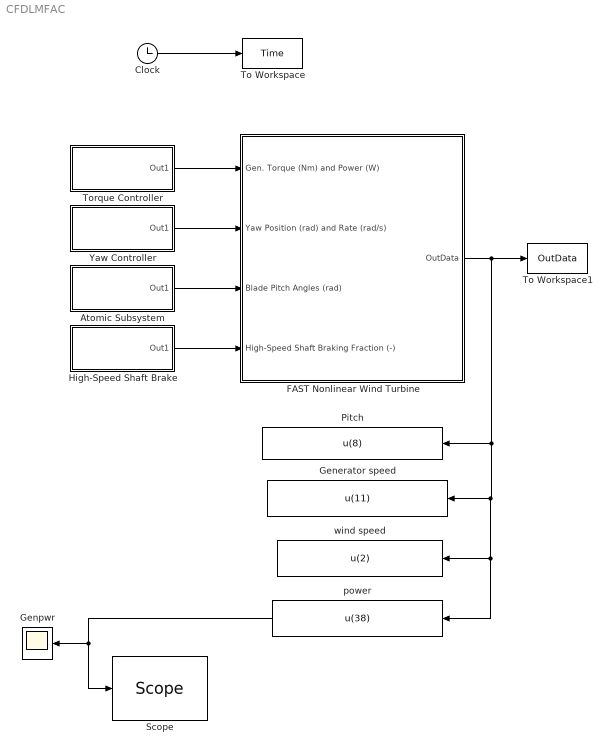
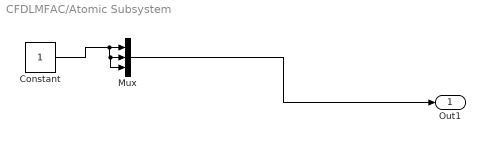
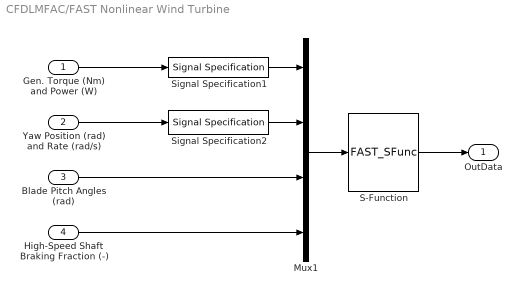
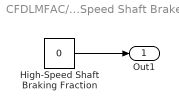
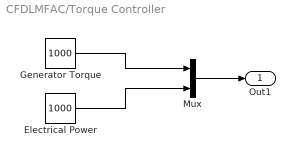
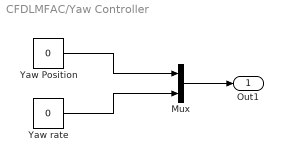
/*
 * CFDLMFAC.c
 *
 * Code generation for model "CFDLMFAC".
 *
 * Model version              : 1.105
 * Simulink Coder version : 9.0 (R2018b) 24-May-2018
 * C source code generated on : Thu Feb 25 07:41:00 2021
 *
 * Target selection: slrt.tlc
 * Note: GRT includes extra infrastructure and instrumentation for prototyping
 * Embedded hardware selection: Generic->32-bit x86 compatible
 * Code generation objective: Execution efficiency
 * Validation result: Not run
 */

#include "rt_logging_mmi.h"
#include "CFDLMFAC_capi.h"
#include "CFDLMFAC.h"
#include "CFDLMFAC_private.h"

/* Block signals (default storage) */
B_CFDLMFAC_T CFDLMFAC_B;

/* Block states (default storage) */
DW_CFDLMFAC_T CFDLMFAC_DW;

/* Real-time model */
RT_MODEL_CFDLMFAC_T CFDLMFAC_M_;
RT_MODEL_CFDLMFAC_T *const CFDLMFAC_M = &CFDLMFAC_M_;

/* Model output function */
static void CFDLMFAC_output(void)
{
  /* S-Function (FAST_SFunc): '<S2>/S-Function' incorporates:
   *  Constant: '<S1>/Constant'
   *  Constant: '<S3>/High-Speed Shaft Braking Fraction'
   *  Constant: '<S5>/Electrical Power'
   *  Constant: '<S5>/Generator Torque'
   *  Constant: '<S6>/Yaw Position'
   *  Constant: '<S6>/Yaw rate'
   */

  /* Level2 S-Function Block: '<S2>/S-Function' (FAST_SFunc) */
  {
    SimStruct *rts = CFDLMFAC_M->childSfunctions[0];
    sfcnOutputs(rts,1);
  }

  /* Fcn: '<Root>/power' */
  CFDLMFAC_B.power = CFDLMFAC_B.SFunction[37];

  /* Fcn: '<Root>/Pitch' */
  CFDLMFAC_B.Pitch = CFDLMFAC_B.SFunction[7];

  /* Fcn: '<Root>/wind speed' */
  CFDLMFAC_B.windspeed = CFDLMFAC_B.SFunction[1];

  /* Fcn: '<Root>/Generator speed' */
  CFDLMFAC_B.Generatorspeed = CFDLMFAC_B.SFunction[10];

  /* S-Function (scblock): '<S4>/S-Function' */
  /* ok to acquire for <S4>/S-Function */
  CFDLMFAC_DW.SFunction_IWORK.AcquireOK = 1;

  /* Clock: '<Root>/Clock' */
  CFDLMFAC_B.Clock = CFDLMFAC_M->Timing.t[0];
}

/* Model update function */
static void CFDLMFAC_update(void)
{
  /* Update for S-Function (FAST_SFunc): '<S2>/S-Function' incorporates:
   *  Constant: '<S1>/Constant'
   *  Constant: '<S3>/High-Speed Shaft Braking Fraction'
   *  Constant: '<S5>/Electrical Power'
   *  Constant: '<S5>/Generator Torque'
   *  Constant: '<S6>/Yaw Position'
   *  Constant: '<S6>/Yaw rate'
   */
  /* Level2 S-Function Block: '<S2>/S-Function' (FAST_SFunc) */
  {
    SimStruct *rts = CFDLMFAC_M->childSfunctions[0];
    sfcnUpdate(rts,1);
    if (ssGetErrorStatus(rts) != (NULL))
      return;
  }

  /* Update absolute time for base rate */
  /* The "clockTick0" counts the number of times the code of this task has
   * been executed. The absolute time is the multiplication of "clockTick0"
   * and "Timing.stepSize0". Size of "clockTick0" ensures timer will not
   * overflow during the application lifespan selected.
   * Timer of this task consists of two 32 bit unsigned integers.
   * The two integers represent the low bits Timing.clockTick0 and the high bits
   * Timing.clockTickH0. When the low bit overflows to 0, the high bits increment.
   */
  if (!(++CFDLMFAC_M->Timing.clockTick0)) {
    ++CFDLMFAC_M->Timing.clockTickH0;
  }

  CFDLMFAC_M->Timing.t[0] = CFDLMFAC_M->Timing.clockTick0 *
    CFDLMFAC_M->Timing.stepSize0 + CFDLMFAC_M->Timing.clockTickH0 *
    CFDLMFAC_M->Timing.stepSize0 * 4294967296.0;

  {
    /* Update absolute timer for sample time: [0.00625s, 0.0s] */
    /* The "clockTick1" counts the number of times the code of this task has
     * been executed. The absolute time is the multiplication of "clockTick1"
     * and "Timing.stepSize1". Size of "clockTick1" ensures timer will not
     * overflow during the application lifespan selected.
     * Timer of this task consists of two 32 bit unsigned integers.
     * The two integers represent the low bits Timing.clockTick1 and the high bits
     * Timing.clockTickH1. When the low bit overflows to 0, the high bits increment.
     */
    if (!(++CFDLMFAC_M->Timing.clockTick1)) {
      ++CFDLMFAC_M->Timing.clockTickH1;
    }

    CFDLMFAC_M->Timing.t[1] = CFDLMFAC_M->Timing.clockTick1 *
      CFDLMFAC_M->Timing.stepSize1 + CFDLMFAC_M->Timing.clockTickH1 *
      CFDLMFAC_M->Timing.stepSize1 * 4294967296.0;
  }
}
